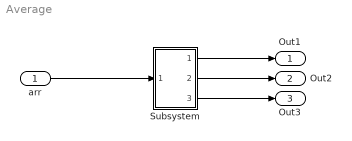
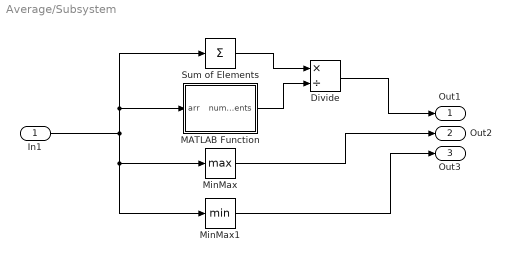
== matlab function Average/Subsystem/MATLAB Function ==
function numElements = array_length(arr)
    numElements = numel(arr);
end

/*
 * File: Average.c
 *
 * Code generated for Simulink model 'Average'.
 *
 * Model version                  : 1.4
 * Simulink Coder version         : 9.5 (R2021a) 14-Nov-2020
 * C/C++ source code generated on : Tue Jan 23 13:51:14 2024
 *
 * Target selection: ert.tlc
 * Embedded hardware selection: Intel->x86-64 (Windows64)
 * Code generation objectives:
 *    1. RAM efficiency
 *    2. Execution efficiency
 * Validation result: Not run
 */

#include "Average.h"
#include "Average_private.h"

/* Model step function */
void Average_step(RT_MODEL_Average_T *const Average_M, real_T Average_U_arr[10],
                  real_T *Average_Y_Avr_Out, real_T *Average_Y_Max_Out, real_T
                  *Average_Y_Min_Out)
{
  real_T maxV_tmp;
  real_T tmp;
  int32_T sigIdx;

  /* Outputs for Atomic SubSystem: '<Root>/Subsystem' */
  /* Sum: '<S1>/Sum of Elements' incorporates:
   *  Inport: '<Root>/arr'
   */
  tmp = -0.0;
  for (sigIdx = 0; sigIdx < 10; sigIdx++) {
    tmp += Average_U_arr[sigIdx];
  }

  /* MinMax: '<S1>/MinMax' incorporates:
   *  Inport: '<Root>/arr'
   */
  *Average_Y_Max_Out = Average_U_arr[0];

  /* MinMax: '<S1>/MinMax1' incorporates:
   *  Inport: '<Root>/arr'
   */
  *Average_Y_Min_Out = Average_U_arr[0];
  for (sigIdx = 0; sigIdx < 9; sigIdx++) {
    /* MinMax: '<S1>/MinMax' incorporates:
     *  Inport: '<Root>/arr'
     *  MinMax: '<S1>/MinMax1'
     */
    maxV_tmp = Average_U_arr[sigIdx + 1];
    *Average_Y_Max_Out = fmax(*Average_Y_Max_Out, maxV_tmp);

    /* MinMax: '<S1>/MinMax1' */
    *Average_Y_Min_Out = fmin(*Average_Y_Min_Out, maxV_tmp);
  }

  /* Outport: '<Root>/Out1' incorporates:
   *  MATLAB Function: '<S1>/MATLAB Function'
   *  Product: '<S1>/Divide'
   *  Sum: '<S1>/Sum of Elements'
   */
  *Average_Y_Avr_Out = tmp / 10.0;

  /* End of Outputs for SubSystem: '<Root>/Subsystem' */
  UNUSED_PARAMETER(Average_M);
}
